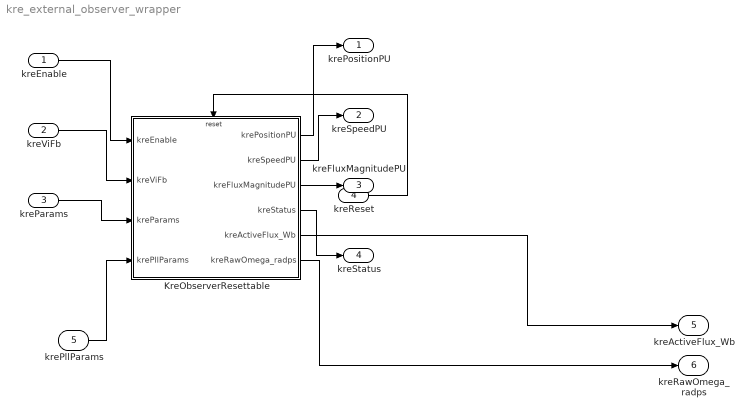
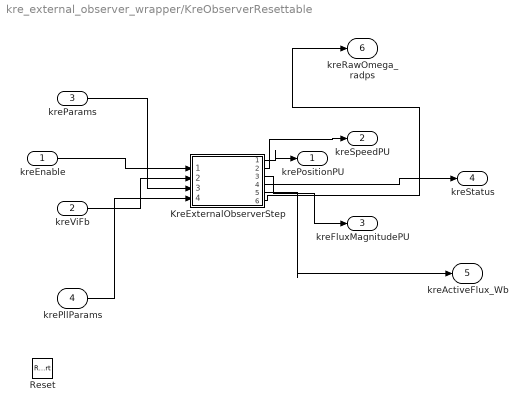
== matlab function kre_external_observer_wrapper/KreObserverResettable/KreExternalObserverStep ==
function [krePositionPU, kreSpeedPU, kreFluxMagnitudePU, kreStatus, kreActiveFlux_Wb, kreRawOmega_radps] = fcn(kreEnable, kreViFb, kreParams, krePllParams)
%#codegen
[krePositionPU, kreSpeedPU, kreFluxMagnitudePU, kreActiveFlux_Wb, kreRawOmega_radps, kreStatus] = kre_external_observer_diagnostic_step(kreEnable, kreViFb, kreParams, krePllParams);
end

/*
 * Academic License - for use in teaching, academic research, and meeting
 * course requirements at degree granting institutions only.  Not for
 * government, commercial, or other organizational use.
 *
 * File: kre_external_observer_wrapper.c
 *
 * Code generated for Simulink model 'kre_external_observer_wrapper'.
 *
 * Model version                  : 1.9
 * Simulink Coder version         : 26.1 (R2026a) 20-Nov-2025
 * C/C++ source code generated on : Thu Aug 27 23:33:01 2026
 *
 * Target selection: ert.tlc
 * Embedded hardware selection: ARM Compatible->ARM Cortex-M
 * Code generation objectives: Unspecified
 * Validation result: Not run
 */

#include "kre_external_observer_wrapper.h"
#include "rt_nonfinite.h"
#include <math.h>
#include "kre_external_observer_wrapper_private.h"
#include "rtwtypes.h"
#include "zero_crossing_types.h"
#include "rt_defines.h"

/* Block states (default storage) */
DW_kre_external_observer_wrap_T kre_external_observer_wrappe_DW;

/* Previous zero-crossings (trigger) states */
PrevZCX_kre_external_observer_T kre_external_observer_w_PrevZCX;

/* External inputs (root inport signals with default storage) */
ExtU_kre_external_observer_wr_T kre_external_observer_wrapper_U;

/* External outputs (root outports fed by signals with default storage) */
ExtY_kre_external_observer_wr_T kre_external_observer_wrapper_Y;
KreDiscreteCoefficients kre_external_observer_coefficients;

/* Real-time model */
static RT_MODEL_kre_external_observe_T kre_external_observer_wrappe_M_;
RT_MODEL_kre_external_observe_T *const kre_external_observer_wrappe_M =
  &kre_external_observer_wrappe_M_;
real32_T kre_rt_atan2f_snf(real32_T u0, real32_T u1)
{
  real32_T y;
  if (rtIsNaNF(u0) || rtIsNaNF(u1)) {
    y = (rtNaNF);
  } else if (rtIsInfF(u0) && rtIsInfF(u1)) {
    int32_T tmp;
    int32_T tmp_0;
    if (u0 > 0.0F) {
      tmp = 1;
    } else {
      tmp = -1;
    }

    if (u1 > 0.0F) {
      tmp_0 = 1;
    } else {
      tmp_0 = -1;
    }

    y = atan2f((real32_T)tmp, (real32_T)tmp_0);
  } else if (u1 == 0.0F) {
    if (u0 > 0.0F) {
      y = RT_PIF / 2.0F;
    } else if (u0 < 0.0F) {
      y = -(RT_PIF / 2.0F);
    } else {
      y = 0.0F;
    }
  } else {
    y = atan2f(u0, u1);
  }

  return y;
}

/* Model step function */
void kre_external_observer_wrapper_step(void)
{
  real32_T currentAB_idx_0;
  real32_T currentAB_idx_1;
  real32_T h1I_idx_0;
  real32_T h1I_idx_1;
  real32_T h2Gain;
  real32_T l0;
  real32_T omega1;
  real32_T omega1_idx_0;
  real32_T phi_idx_0;
  real32_T phi_idx_1;
  real32_T pllNaturalFrequency;
  real32_T thetaRaw;
  real32_T xHat_idx_0;
  real32_T xHat_idx_1;
  boolean_T valid;

  /* Outputs for Resettable SubSystem: '<Root>/KreObserverResettable' incorporates:
   *  ResetPort: '<S1>/Reset'
   */
  /* Inport: '<Root>/kreReset' */
  if ((kre_external_observer_wrapper_U.kreReset > 0) &&
      (kre_external_observer_w_PrevZCX.KreObserverResettable_Reset_ZCE !=
       POS_ZCSIG)) {
    /* SystemReset for MATLAB Function: '<S1>/KreExternalObserverStep' */
    kre_external_observer_wrappe_DW.h2Vri[0] = 0.0F;
    kre_external_observer_wrappe_DW.h2I[0] = 0.0F;
    kre_external_observer_wrappe_DW.h2Vri[1] = 0.0F;
    kre_external_observer_wrappe_DW.h2I[1] = 0.0F;
    kre_external_observer_wrappe_DW.h2Reg = 0.0F;
    kre_external_observer_wrappe_DW.h2D = 0.0F;
    kre_external_observer_wrappe_DW.qState[0] = 0.0F;
    kre_external_observer_wrappe_DW.qState[1] = 0.0F;
    kre_external_observer_wrappe_DW.qState[2] = 0.0F;
    kre_external_observer_wrappe_DW.qState[3] = 0.0F;
    kre_external_observer_wrappe_DW.yState[0] = 0.0F;
    kre_external_observer_wrappe_DW.lambdaHat[0] = 0.0F;
    kre_external_observer_wrappe_DW.yState[1] = 0.0F;
    kre_external_observer_wrappe_DW.lambdaHat[1] = 0.0F;
    kre_external_observer_wrappe_DW.pllTheta = 0.0F;
    kre_external_observer_wrappe_DW.pllOmegaInt = 0.0F;
    kre_external_observer_wrappe_DW.speedFilt = 0.0F;
    kre_external_observer_wrappe_DW.pllInitialized = false;
  }

  kre_external_observer_w_PrevZCX.KreObserverResettable_Reset_ZCE = (ZCSigState)
    (kre_external_observer_wrapper_U.kreReset > 0);

  /* End of Inport: '<Root>/kreReset' */

  /* Outport: '<Root>/krePositionPU' incorporates:
   *  MATLAB Function: '<S1>/KreExternalObserverStep'
   */
  kre_external_observer_wrapper_Y.krePositionPU = 0.0F;

  /* Outport: '<Root>/kreSpeedPU' incorporates:
   *  MATLAB Function: '<S1>/KreExternalObserverStep'
   */
  kre_external_observer_wrapper_Y.kreSpeedPU = 0.0F;

  /* Outport: '<Root>/kreActiveFlux_Wb' incorporates:
   *  MATLAB Function: '<S1>/KreExternalObserverStep'
   */
  kre_external_observer_wrapper_Y.kreActiveFlux_Wb = 0.0F;

  /* Outport: '<Root>/kreRawOmega_radps' incorporates:
   *  MATLAB Function: '<S1>/KreExternalObserverStep'
   */
  kre_external_observer_wrapper_Y.kreRawOmega_radps = 0.0F;

  /* Outport: '<Root>/kreStatus' incorporates:
   *  MATLAB Function: '<S1>/KreExternalObserverStep'
   */
  kre_external_observer_wrapper_Y.kreStatus = 0U;

  /* MATLAB Function: '<S1>/KreExternalObserverStep' incorporates:
   *  Inport: '<Root>/kreEnable'
   *  Inport: '<Root>/kreParams'
   *  Inport: '<Root>/krePllParams'
   *  Inport: '<Root>/kreViFb'
   */
  if (kre_external_observer_wrapper_U.kreEnable != 0) {
    valid = (!rtIsInfF(kre_external_observer_wrapper_U.kreViFb[0]) && !rtIsNaNF
             (kre_external_observer_wrapper_U.kreViFb[0]));
    if (valid) {
      valid = (!rtIsInfF(kre_external_observer_wrapper_U.kreViFb[1]) &&
               !rtIsNaNF(kre_external_observer_wrapper_U.kreViFb[1]));
    }

    if (valid) {
      valid = (!rtIsInfF(kre_external_observer_wrapper_U.kreViFb[2]) &&
               !rtIsNaNF(kre_external_observer_wrapper_U.kreViFb[2]));
    }

    if (valid) {
      valid = (!rtIsInfF(kre_external_observer_wrapper_U.kreViFb[3]) &&
               !rtIsNaNF(kre_external_observer_wrapper_U.kreViFb[3]));
    }

    /* Local generated-C customization: parameters are trusted here.
     * Keep input/output finite checks; do not scan parameter values or ranges
     * in the fast step. Reapply this change after model code regeneration. */
    if (!valid) {
      /* Outport: '<Root>/kreStatus' */
      kre_external_observer_wrapper_Y.kreStatus = 2U;
    } else {
      currentAB_idx_0 = kre_external_observer_wrapper_U.kreViFb[2] *
        kre_external_observer_wrapper_U.kreParams[6];
      currentAB_idx_1 = kre_external_observer_wrapper_U.kreViFb[3] *
        kre_external_observer_wrapper_U.kreParams[6];
      l0 = kre_external_observer_coefficients.inductanceDelta;
      h2Gain = kre_external_observer_coefficients.h2Gain;
      thetaRaw = kre_external_observer_wrapper_U.kreViFb[0] *
        kre_external_observer_wrapper_U.kreParams[5] -
        kre_external_observer_wrapper_U.kreParams[0] * currentAB_idx_0;
      pllNaturalFrequency = kre_external_observer_wrapper_U.kreViFb[1] *
        kre_external_observer_wrapper_U.kreParams[5] -
        kre_external_observer_wrapper_U.kreParams[0] * currentAB_idx_1;
      phi_idx_1 = (thetaRaw - kre_external_observer_wrappe_DW.h2Vri[0]) * h2Gain
        + kre_external_observer_wrappe_DW.h2Vri[0];
      kre_external_observer_wrappe_DW.h2Vri[0] = phi_idx_1;
      xHat_idx_1 = (currentAB_idx_0 - kre_external_observer_wrappe_DW.h2I[0]) *
        h2Gain + kre_external_observer_wrappe_DW.h2I[0];
      kre_external_observer_wrappe_DW.h2I[0] = xHat_idx_1;
      h1I_idx_1 = (currentAB_idx_0 - xHat_idx_1) *
        kre_external_observer_wrapper_U.kreParams[9];
      omega1 = phi_idx_1 - kre_external_observer_wrapper_U.kreParams[2] *
        h1I_idx_1;
      omega1_idx_0 = omega1;
      h1I_idx_1 = omega1 - l0 * h1I_idx_1;
      h1I_idx_0 = h1I_idx_1;
      phi_idx_0 = omega1 + h1I_idx_1;
      xHat_idx_0 = kre_external_observer_wrappe_DW.lambdaHat[0] -
        kre_external_observer_wrapper_U.kreParams[2] * currentAB_idx_0;
      phi_idx_1 = (pllNaturalFrequency - kre_external_observer_wrappe_DW.h2Vri[1])
        * h2Gain + kre_external_observer_wrappe_DW.h2Vri[1];
      kre_external_observer_wrappe_DW.h2Vri[1] = phi_idx_1;
      xHat_idx_1 = (currentAB_idx_1 - kre_external_observer_wrappe_DW.h2I[1]) *
        h2Gain + kre_external_observer_wrappe_DW.h2I[1];
      kre_external_observer_wrappe_DW.h2I[1] = xHat_idx_1;
      h1I_idx_1 = (currentAB_idx_1 - xHat_idx_1) *
        kre_external_observer_wrapper_U.kreParams[9];
      omega1 = phi_idx_1 - kre_external_observer_wrapper_U.kreParams[2] *
        h1I_idx_1;
      h1I_idx_1 = omega1 - l0 * h1I_idx_1;
      phi_idx_1 = omega1 + h1I_idx_1;
      xHat_idx_1 = kre_external_observer_wrappe_DW.lambdaHat[1] -
        kre_external_observer_wrapper_U.kreParams[2] * currentAB_idx_1;
      kre_external_observer_wrappe_DW.h2Reg += ((h1I_idx_0 * omega1_idx_0 +
        h1I_idx_1 * omega1) - kre_external_observer_wrappe_DW.h2Reg) * h2Gain;
      kre_external_observer_wrapper_Y.kreActiveFlux_Wb = sqrtf(xHat_idx_0 *
        xHat_idx_0 + xHat_idx_1 * xHat_idx_1);
      if (kre_external_observer_wrapper_Y.kreActiveFlux_Wb >=
          kre_external_observer_wrapper_U.kreParams[12]) {
        h1I_idx_0 = xHat_idx_0 /
          kre_external_observer_wrapper_Y.kreActiveFlux_Wb;
        h1I_idx_1 = xHat_idx_1 /
          kre_external_observer_wrapper_Y.kreActiveFlux_Wb;
      } else {
        h1I_idx_0 = 0.0F;
        h1I_idx_1 = 0.0F;
      }

      h1I_idx_0 = currentAB_idx_0 * h1I_idx_0 + currentAB_idx_1 * h1I_idx_1;
      kre_external_observer_wrappe_DW.h2D += (h1I_idx_0 -
        kre_external_observer_wrappe_DW.h2D) * h2Gain;
      l0 = (-kre_external_observer_wrapper_U.kreParams[3] * l0 *
            kre_external_observer_wrapper_U.kreParams[9] * (h1I_idx_0 -
             kre_external_observer_wrappe_DW.h2D) + (phi_idx_0 * xHat_idx_0 +
             phi_idx_1 * xHat_idx_1)) - (((kre_external_observer_wrappe_DW.h2I[0]
        * omega1_idx_0 + kre_external_observer_wrappe_DW.h2I[1] * omega1) * l0 +
        (omega1_idx_0 * omega1_idx_0 + omega1 * omega1) /
        kre_external_observer_wrapper_U.kreParams[9]) +
        kre_external_observer_wrappe_DW.h2Reg /
        kre_external_observer_wrapper_U.kreParams[9]);
      h1I_idx_0 = -kre_external_observer_wrapper_U.kreParams[11] *
        kre_external_observer_wrappe_DW.yState[0];
      h1I_idx_1 = -kre_external_observer_wrapper_U.kreParams[11] *
        kre_external_observer_wrappe_DW.yState[1];
      h2Gain = kre_external_observer_wrappe_DW.qState[0] * h1I_idx_0 +
        kre_external_observer_wrappe_DW.qState[2] * h1I_idx_1;
      omega1_idx_0 = kre_external_observer_wrappe_DW.qState[1] * h1I_idx_0 +
        kre_external_observer_wrappe_DW.qState[3] * h1I_idx_1;
      kre_external_observer_wrappe_DW.qState[0] +=
        (kre_external_observer_wrappe_DW.qState[0] - phi_idx_0 * phi_idx_0) *
        -kre_external_observer_wrapper_U.kreParams[10] *
        kre_external_observer_wrapper_U.kreParams[4];
      currentAB_idx_0 = phi_idx_1 * phi_idx_0;
      kre_external_observer_wrappe_DW.qState[1] +=
        (kre_external_observer_wrappe_DW.qState[1] - currentAB_idx_0) *
        -kre_external_observer_wrapper_U.kreParams[10] *
        kre_external_observer_wrapper_U.kreParams[4];
      kre_external_observer_wrappe_DW.qState[2] +=
        (kre_external_observer_wrappe_DW.qState[2] - currentAB_idx_0) *
        -kre_external_observer_wrapper_U.kreParams[10] *
        kre_external_observer_wrapper_U.kreParams[4];
      kre_external_observer_wrappe_DW.qState[3] +=
        (kre_external_observer_wrappe_DW.qState[3] - phi_idx_1 * phi_idx_1) *
        -kre_external_observer_wrapper_U.kreParams[10] *
        kre_external_observer_wrapper_U.kreParams[4];
      kre_external_observer_wrappe_DW.yState[0] +=
        ((kre_external_observer_wrappe_DW.yState[0] - phi_idx_0 * l0) *
         -kre_external_observer_wrapper_U.kreParams[10] + h2Gain) *
        kre_external_observer_wrapper_U.kreParams[4];
      kre_external_observer_wrappe_DW.lambdaHat[0] += (thetaRaw + h1I_idx_0) *
        kre_external_observer_wrapper_U.kreParams[4];
      kre_external_observer_wrappe_DW.yState[1] +=
        ((kre_external_observer_wrappe_DW.yState[1] - phi_idx_1 * l0) *
         -kre_external_observer_wrapper_U.kreParams[10] + omega1_idx_0) *
        kre_external_observer_wrapper_U.kreParams[4];
      kre_external_observer_wrappe_DW.lambdaHat[1] += (pllNaturalFrequency +
        h1I_idx_1) * kre_external_observer_wrapper_U.kreParams[4];
      thetaRaw = kre_rt_atan2f_snf(xHat_idx_1, xHat_idx_0);
      if (kre_external_observer_wrapper_Y.kreActiveFlux_Wb >=
          kre_external_observer_wrapper_U.kreParams[12]) {
        if (kre_external_observer_wrappe_DW.pllInitialized) {
          thetaRaw -= kre_external_observer_wrappe_DW.pllTheta;
          thetaRaw -= floorf((thetaRaw + 3.1415927F) / 6.2831855F) * 6.2831855F;
          if (thetaRaw >= 3.1415927F) {
            thetaRaw -= 6.2831855F;
          } else if (thetaRaw < -3.1415927F) {
            thetaRaw += 6.2831855F;
          }

          kre_external_observer_wrappe_DW.pllOmegaInt +=
            kre_external_observer_coefficients.pllKiTs * thetaRaw;
          kre_external_observer_wrapper_Y.kreRawOmega_radps =
            kre_external_observer_coefficients.pllKp * thetaRaw +
            kre_external_observer_wrappe_DW.pllOmegaInt;
          thetaRaw = kre_external_observer_wrapper_U.kreParams[4] *
            kre_external_observer_wrapper_Y.kreRawOmega_radps +
            kre_external_observer_wrappe_DW.pllTheta;
          kre_external_observer_wrappe_DW.pllTheta = thetaRaw - floorf((thetaRaw
            + 3.1415927F) / 6.2831855F) * 6.2831855F;
          if (kre_external_observer_wrappe_DW.pllTheta >= 3.1415927F) {
            kre_external_observer_wrappe_DW.pllTheta -= 6.2831855F;
          } else if (kre_external_observer_wrappe_DW.pllTheta < -3.1415927F) {
            kre_external_observer_wrappe_DW.pllTheta += 6.2831855F;
          }
        } else {
          kre_external_observer_wrappe_DW.pllTheta = thetaRaw;
          kre_external_observer_wrappe_DW.pllOmegaInt = 0.0F;
          kre_external_observer_wrapper_Y.kreRawOmega_radps = 0.0F;
          kre_external_observer_wrappe_DW.pllInitialized = true;
        }
      } else {
        kre_external_observer_wrapper_Y.kreRawOmega_radps =
          kre_external_observer_wrappe_DW.pllOmegaInt;
      }

      if (kre_external_observer_wrappe_DW.pllInitialized) {
        if (kre_external_observer_wrappe_DW.pllTheta < 0.0F) {
          kre_external_observer_wrapper_Y.krePositionPU =
            kre_external_observer_wrappe_DW.pllTheta / 6.2831855F + 1.0F;
        } else {
          kre_external_observer_wrapper_Y.krePositionPU =
            kre_external_observer_wrappe_DW.pllTheta / 6.2831855F;
        }

        thetaRaw = kre_external_observer_wrapper_Y.kreRawOmega_radps * 60.0F /
          (6.2831855F * kre_external_observer_wrapper_U.kreParams[8] *
           kre_external_observer_wrapper_U.kreParams[7]);
      } else {
        kre_external_observer_wrapper_Y.krePositionPU = 0.0F;
        thetaRaw = 0.0F;
      }

      kre_external_observer_wrappe_DW.speedFilt +=
        kre_external_observer_coefficients.speedGain * (thetaRaw -
        kre_external_observer_wrappe_DW.speedFilt);

      /* Outport: '<Root>/kreSpeedPU' */
      kre_external_observer_wrapper_Y.kreSpeedPU =
        kre_external_observer_wrappe_DW.speedFilt;
      if (rtIsInfF(kre_external_observer_wrapper_Y.krePositionPU) || rtIsNaNF
          (kre_external_observer_wrapper_Y.krePositionPU) || (rtIsInfF
           (kre_external_observer_wrappe_DW.speedFilt) || rtIsNaNF
           (kre_external_observer_wrappe_DW.speedFilt)) || (rtIsInfF
           (kre_external_observer_wrapper_Y.kreActiveFlux_Wb) || rtIsNaNF
           (kre_external_observer_wrapper_Y.kreActiveFlux_Wb)) || (rtIsInfF
           (kre_external_observer_wrapper_Y.kreRawOmega_radps) || rtIsNaNF
           (kre_external_observer_wrapper_Y.kreRawOmega_radps))) {
        /* Outport: '<Root>/krePositionPU' */
        kre_external_observer_wrapper_Y.krePositionPU = 0.0F;

        /* Outport: '<Root>/kreSpeedPU' */
        kre_external_observer_wrapper_Y.kreSpeedPU = 0.0F;

        /* Outport: '<Root>/kreActiveFlux_Wb' */
        kre_external_observer_wrapper_Y.kreActiveFlux_Wb = 0.0F;

        /* Outport: '<Root>/kreRawOmega_radps' */
        kre_external_observer_wrapper_Y.kreRawOmega_radps = 0.0F;

        /* Outport: '<Root>/kreStatus' */
        kre_external_observer_wrapper_Y.kreStatus = 2U;
      } else {
        /* Outport: '<Root>/kreStatus' */
        kre_external_observer_wrapper_Y.kreStatus = 1U;
      }
    }
  }

  /* Outport: '<Root>/kreFluxMagnitudePU' incorporates:
   *  MATLAB Function: '<S1>/KreExternalObserverStep'
   */
  kre_external_observer_wrapper_Y.kreFluxMagnitudePU = 0.0F;

  /* End of Outputs for SubSystem: '<Root>/KreObserverResettable' */
}
